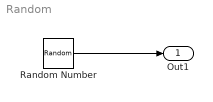
/*
 * Random.c
 *
 * Code generation for model "Random".
 *
 * Model version              : 1.2
 * Simulink Coder version : 9.2 (R2019b) 18-Jul-2019
 * C source code generated on : Mon May  2 18:59:27 2022
 *
 * Target selection: grt.tlc
 * Note: GRT includes extra infrastructure and instrumentation for prototyping
 * Embedded hardware selection: Intel->x86-64 (Windows64)
 * Code generation objectives: Unspecified
 * Validation result: Not run
 */

#include "Random.h"
#include "Random_private.h"

/* Block states (default storage) */
DW_Random_T Random_DW;

/* External outputs (root outports fed by signals with default storage) */
ExtY_Random_T Random_Y;

/* Real-time model */
RT_MODEL_Random_T Random_M_;
RT_MODEL_Random_T *const Random_M = &Random_M_;
real_T rt_urand_Upu32_Yd_f_pw_snf(uint32_T *u)
{
  uint32_T lo;
  uint32_T hi;

  /* Uniform random number generator (random number between 0 and 1)

     #define IA      16807                      magic multiplier = 7^5
     #define IM      2147483647                 modulus = 2^31-1
     #define IQ      127773                     IM div IA
     #define IR      2836                       IM modulo IA
     #define S       4.656612875245797e-10      reciprocal of 2^31-1
     test = IA * (seed % IQ) - IR * (seed/IQ)
     seed = test < 0 ? (test + IM) : test
     return (seed*S)
   */
  lo = *u % 127773U * 16807U;
  hi = *u / 127773U * 2836U;
  if (lo < hi) {
    *u = 2147483647U - (hi - lo);
  } else {
    *u = lo - hi;
  }

  return (real_T)*u * 4.6566128752457969E-10;
}

real_T rt_nrand_Upu32_Yd_f_pw_snf(uint32_T *u)
{
  real_T y;
  real_T sr;
  real_T si;

  /* Normal (Gaussian) random number generator */
  do {
    sr = 2.0 * rt_urand_Upu32_Yd_f_pw_snf(u) - 1.0;
    si = 2.0 * rt_urand_Upu32_Yd_f_pw_snf(u) - 1.0;
    si = sr * sr + si * si;
  } while (si > 1.0);

  y = sqrt(-2.0 * log(si) / si) * sr;
  return y;
}

/* Model step function */
void Random_step(void)
{
  /* Outport: '<Root>/Out1' incorporates:
   *  RandomNumber: '<Root>/Random Number'
   */
  Random_Y.Out1 = Random_DW.NextOutput;

  /* Update for RandomNumber: '<Root>/Random Number' */
  Random_DW.NextOutput = rt_nrand_Upu32_Yd_f_pw_snf(&Random_DW.RandSeed) *
    Random_P.RandomNumber_StdDev + Random_P.RandomNumber_Mean;

  /* Matfile logging */
  rt_UpdateTXYLogVars(Random_M->rtwLogInfo, (&Random_M->Timing.taskTime0));

  /* signal main to stop simulation */
  {                                    /* Sample time: [1.0s, 0.0s] */
    if ((rtmGetTFinal(Random_M)!=-1) &&
        !((rtmGetTFinal(Random_M)-Random_M->Timing.taskTime0) >
          Random_M->Timing.taskTime0 * (DBL_EPSILON))) {
      rtmSetErrorStatus(Random_M, "Simulation finished");
    }
  }

  /* Update absolute time for base rate */
  /* The "clockTick0" counts the number of times the code of this task has
   * been executed. The absolute time is the multiplication of "clockTick0"
   * and "Timing.stepSize0". Size of "clockTick0" ensures timer will not
   * overflow during the application lifespan selected.
   * Timer of this task consists of two 32 bit unsigned integers.
   * The two integers represent the low bits Timing.clockTick0 and the high bits
   * Timing.clockTickH0. When the low bit overflows to 0, the high bits increment.
   */
  if (!(++Random_M->Timing.clockTick0)) {
    ++Random_M->Timing.clockTickH0;
  }

  Random_M->Timing.taskTime0 = Random_M->Timing.clockTick0 *
    Random_M->Timing.stepSize0 + Random_M->Timing.clockTickH0 *
    Random_M->Timing.stepSize0 * 4294967296.0;
}
